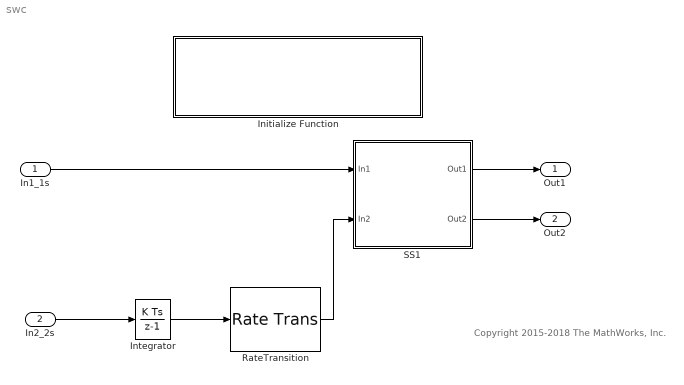
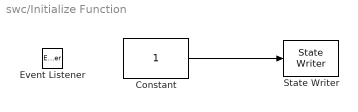
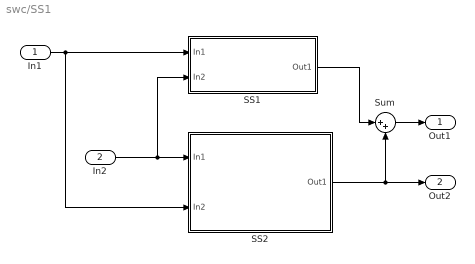
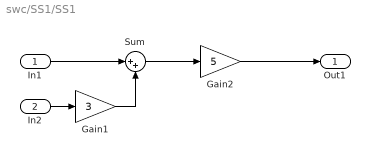
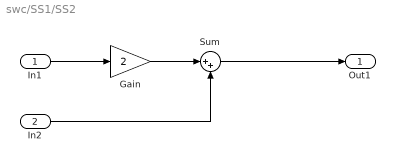
/*
 * File: swc.c
 *
 * Code generated for Simulink model 'swc'.
 *
 * Model version                  : 7.1
 * Simulink Coder version         : 9.8 (R2022b) 13-May-2022
 * C/C++ source code generated on : Sat Aug 16 12:33:07 2025
 *
 * Target selection: autosar.tlc
 * Embedded hardware selection: Intel->x86-64 (Windows64)
 * Code generation objectives: Unspecified
 * Validation result: Not run
 */

#include "swc.h"
#include "rtwtypes.h"

/* PublicStructure Variables for Internal Data */
ARID_DEF rtARID_DEF;                   /* '<Root>/Integrator' */

/* Model step function for TID0 */
void swc_Step(void)                    /* Sample time: [1.0s, 0.0s] */
{
  float64 rtb_RateTransition;
  float64 rtb_Sum_n;

  /* RateTransition: '<Root>/RateTransition' */
  rtb_RateTransition = Rte_IrvIRead_swc_Step_IRV1();

  /* Outputs for Atomic SubSystem: '<S2>/SS2' */
  /* Sum: '<S4>/Sum' incorporates:
   *  Gain: '<S4>/Gain'
   *  Inport: '<Root>/In1_1s'
   */
  rtb_Sum_n = 2.0 * rtb_RateTransition + Rte_IRead_swc_Step_In1_1s_In1_1s();

  /* End of Outputs for SubSystem: '<S2>/SS2' */

  /* Outputs for Atomic SubSystem: '<S2>/SS1' */
  /* Outport: '<Root>/Out1' incorporates:
   *  Gain: '<S3>/Gain1'
   *  Gain: '<S3>/Gain2'
   *  Inport: '<Root>/In1_1s'
   *  Sum: '<S2>/Sum'
   *  Sum: '<S3>/Sum'
   */
  Rte_IWrite_swc_Step_Out1_Out1(5.0 * (Rte_IRead_swc_Step_In1_1s_In1_1s() + 3.0 *
    rtb_RateTransition) + rtb_Sum_n);

  /* End of Outputs for SubSystem: '<S2>/SS1' */

  /* Outport: '<Root>/Out2' */
  Rte_IWrite_swc_Step_Out2_Out2(rtb_Sum_n);
}

/* Model step function for TID1 */
void swc_Step1(void)                   /* Sample time: [2.0s, 0.0s] */
{
  /* RateTransition: '<Root>/RateTransition' incorporates:
   *  DiscreteIntegrator: '<Root>/Integrator'
   */
  Rte_IrvIWrite_swc_Step1_IRV1(rtARID_DEF.Integrator_DSTATE);

  /* Update for DiscreteIntegrator: '<Root>/Integrator' incorporates:
   *  Inport: '<Root>/In2_2s'
   */
  rtARID_DEF.Integrator_DSTATE += 2.0 * Rte_IRead_swc_Step1_In2_2s_In2_2s();
}
